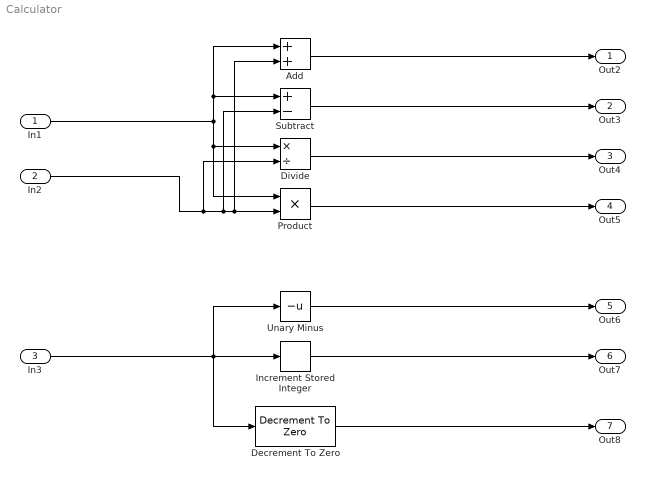
/*
 * File: Calculator.c
 *
 * Code generated for Simulink model 'Calculator'.
 *
 * Model version                  : 1.2
 * Simulink Coder version         : 9.5 (R2021a) 14-Nov-2020
 * C/C++ source code generated on : Sun Feb 11 20:07:04 2024
 *
 * Target selection: ert.tlc
 * Embedded hardware selection: Intel->x86-64 (Windows64)
 * Code generation objectives: Unspecified
 * Validation result: Not run
 */

#include "Calculator.h"
#include "Calculator_private.h"

/* External inputs (root inport signals with default storage) */
ExtU_Calculator_T Calculator_U;

/* External outputs (root outports fed by signals with default storage) */
ExtY_Calculator_T Calculator_Y;

/* Real-time model */
static RT_MODEL_Calculator_T Calculator_M_;
RT_MODEL_Calculator_T *const Calculator_M = &Calculator_M_;

/* Model step function */
void Calculator_step(void)
{
  /* Outport: '<Root>/Out2' incorporates:
   *  Inport: '<Root>/In1'
   *  Inport: '<Root>/In2'
   *  Sum: '<Root>/Add'
   */
  Calculator_Y.Out2 = Calculator_U.In1 + Calculator_U.In2;

  /* Switch: '<S1>/FixPt Switch4' incorporates:
   *  Constant: '<S1>/FixPt Constant'
   *  Inport: '<Root>/In3'
   *  RelationalOperator: '<S1>/FixPt Relational Operator3'
   */
  if (Calculator_U.In3 > 1.0) {
    /* Outport: '<Root>/Out8' incorporates:
     *  Sum: '<S1>/FixPt Sum1'
     */
    Calculator_Y.Out8 = Calculator_U.In3 - 1.0;
  } else {
    /* Outport: '<Root>/Out8' */
    Calculator_Y.Out8 = 0.0;
  }

  /* End of Switch: '<S1>/FixPt Switch4' */

  /* Outport: '<Root>/Out7' incorporates:
   *  Constant: '<S2>/FixPt Constant'
   *  Inport: '<Root>/In3'
   *  Sum: '<S2>/FixPt Sum1'
   */
  Calculator_Y.Out7 = Calculator_U.In3 + 1.0;

  /* Outport: '<Root>/Out3' incorporates:
   *  Inport: '<Root>/In1'
   *  Inport: '<Root>/In2'
   *  Sum: '<Root>/Subtract'
   */
  Calculator_Y.Out3 = Calculator_U.In1 - Calculator_U.In2;

  /* Outport: '<Root>/Out4' incorporates:
   *  Inport: '<Root>/In1'
   *  Inport: '<Root>/In2'
   *  Product: '<Root>/Divide'
   */
  Calculator_Y.Out4 = Calculator_U.In1 / Calculator_U.In2;

  /* Outport: '<Root>/Out5' incorporates:
   *  Inport: '<Root>/In1'
   *  Inport: '<Root>/In2'
   *  Product: '<Root>/Product'
   */
  Calculator_Y.Out5 = Calculator_U.In1 * Calculator_U.In2;

  /* Outport: '<Root>/Out6' incorporates:
   *  Inport: '<Root>/In3'
   *  UnaryMinus: '<Root>/Unary Minus'
   */
  Calculator_Y.Out6 = -Calculator_U.In3;
}
